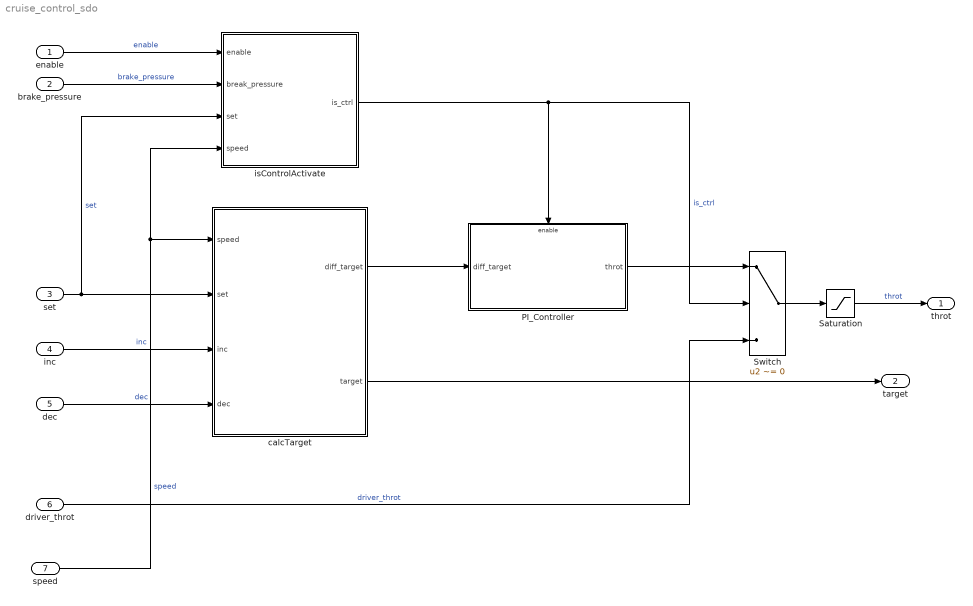
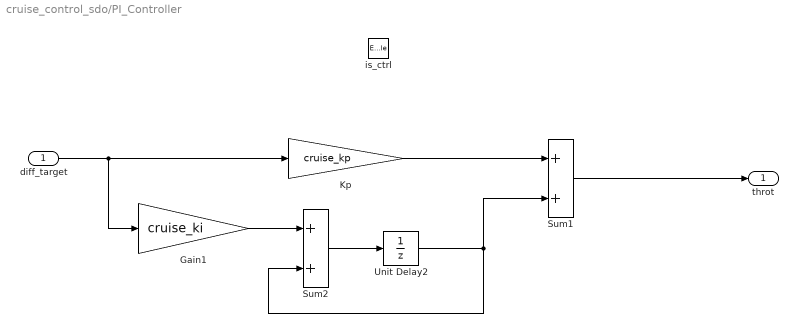
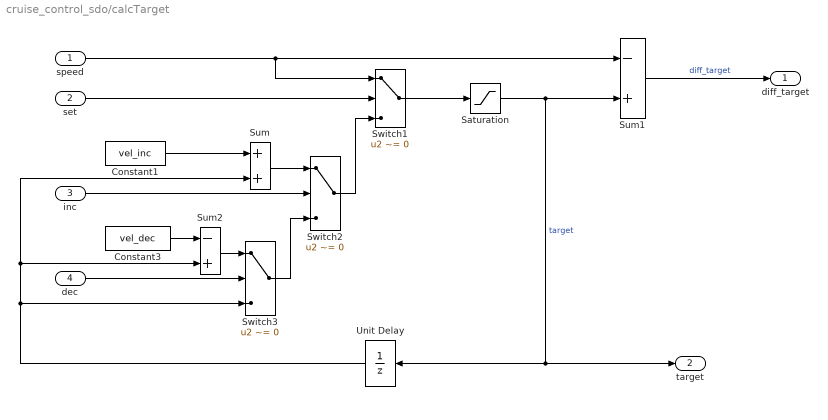
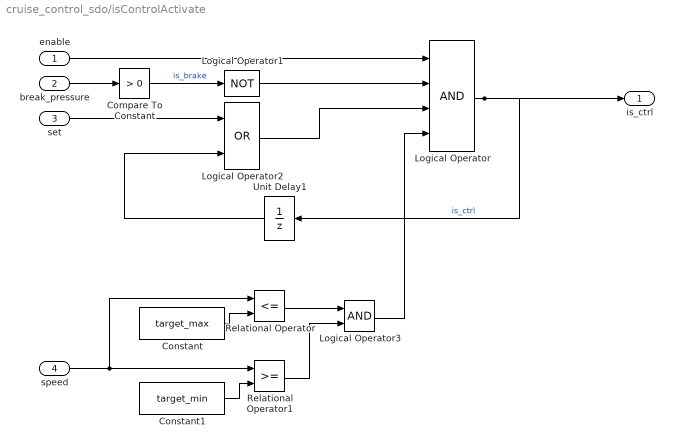
/*
 * File: cruise_control_sdo.c
 *
 * Code generated for Simulink model 'cruise_control_sdo'.
 *
 * Model version                  : 1.304
 * Simulink Coder version         : 8.3 (R2012b) 20-Jul-2012
 * TLC version                    : 8.3 (Jul 21 2012)
 * C/C++ source code generated on : Wed Jan 30 05:09:50 2013
 *
 * Target selection: ert.tlc
 * Embedded hardware selection: NEC->V850
 * Code generation objectives:
 *    1. Execution efficiency
 *    2. ROM efficiency
 *    3. RAM efficiency
 * Validation result: Not run
 */

#include "cruise_control_sdo.h"
#include "cruise_control_sdo_private.h"

/* Exported data definition */

/* Definition for custom storage class: Default */
int16_T brake_pressure;
boolean_T dec;
int16_T diff_target;
int16_T driver_throt;
boolean_T enable;
boolean_T inc;
boolean_T is_ctrl;
boolean_T set;
int16_T speed;
int16_T target;
int16_T throt;
int16_T throt_max = 100;
int16_T throt_min = 0;
int16_T vel_dec = 1;
int16_T vel_inc = 1;

/* Const memory section */
/* Definition for custom storage class: Const */
const int16_T target_max = 100;
const int16_T target_min = 40;

/* Block signals and states (auto storage) */
D_Work_cruise_control_sdo cruise_control_sdo_DWork;

/* Model step function */
void cruise_control_sdo_step(void)
{
  int16_T tmp;

  /* Switch: '<S2>/Switch1' incorporates:
   *  Inport: '<Root>/dec'
   *  Inport: '<Root>/inc'
   *  Inport: '<Root>/set'
   *  Switch: '<S2>/Switch2'
   *  Switch: '<S2>/Switch3'
   */
  if (set) {
    /* Saturate: '<Root>/Saturation' incorporates:
     *  Inport: '<Root>/speed'
     */
    throt = speed;
  } else {
    if (inc) {
      /* Sum: '<S2>/Sum' incorporates:
       *  Constant: '<S2>/Constant1'
       *  Switch: '<S2>/Switch2'
       */
      if (vel_inc > 2047) {
        tmp = MAX_int16_T;
      } else if (vel_inc <= -2048) {
        tmp = MIN_int16_T;
      } else {
        tmp = (int16_T)(vel_inc << 4);
      }

      /* Switch: '<S2>/Switch2' incorporates:
       *  Sum: '<S2>/Sum'
       *  UnitDelay: '<S2>/Unit Delay'
       */
      target = (int16_T)(tmp + target);
    } else {
      if (dec) {
        /* Sum: '<S2>/Sum2' incorporates:
         *  Constant: '<S2>/Constant3'
         *  Switch: '<S2>/Switch2'
         *  Switch: '<S2>/Switch3'
         */
        if (vel_dec > 2047) {
          tmp = MAX_int16_T;
        } else if (vel_dec <= -2048) {
          tmp = MIN_int16_T;
        } else {
          tmp = (int16_T)(vel_dec << 4);
        }

        /* Switch: '<S2>/Switch3' incorporates:
         *  Sum: '<S2>/Sum2'
         *  Switch: '<S2>/Switch2'
         *  UnitDelay: '<S2>/Unit Delay'
         */
        target = (int16_T)(target - tmp);
      }
    }

    /* Saturate: '<Root>/Saturation' incorporates:
     *  Inport: '<Root>/dec'
     *  Switch: '<S2>/Switch2'
     *  Switch: '<S2>/Switch3'
     */
    throt = target;
  }

  /* End of Switch: '<S2>/Switch1' */

  /* Saturate: '<S2>/Saturation' */
  if (target_max > 2047) {
    tmp = MAX_int16_T;
  } else if (target_max <= -2048) {
    tmp = MIN_int16_T;
  } else {
    tmp = (int16_T)(target_max << 4);
  }

  if (throt >= tmp) {
    if (target_max > 2047) {
      target = MAX_int16_T;
    } else if (target_max <= -2048) {
      target = MIN_int16_T;
    } else {
      target = (int16_T)(target_max << 4);
    }
  } else {
    if (target_min > 2047) {
      tmp = MAX_int16_T;
    } else if (target_min <= -2048) {
      tmp = MIN_int16_T;
    } else {
      tmp = (int16_T)(target_min << 4);
    }

    if (throt <= tmp) {
      if (target_min > 2047) {
        target = MAX_int16_T;
      } else if (target_min <= -2048) {
        target = MIN_int16_T;
      } else {
        target = (int16_T)(target_min << 4);
      }
    } else {
      target = throt;
    }
  }

  /* End of Saturate: '<S2>/Saturation' */

  /* Sum: '<S2>/Sum1' incorporates:
   *  Inport: '<Root>/speed'
   */
  diff_target = (int16_T)(target - speed);

  /* Logic: '<S3>/Logical Operator' incorporates:
   *  Constant: '<S3>/Constant'
   *  Constant: '<S3>/Constant1'
   *  Inport: '<Root>/brake_pressure'
   *  Inport: '<Root>/enable'
   *  Inport: '<Root>/set'
   *  Inport: '<Root>/speed'
   *  Logic: '<S3>/Logical Operator1'
   *  Logic: '<S3>/Logical Operator2'
   *  Logic: '<S3>/Logical Operator3'
   *  RelationalOperator: '<S3>/Relational Operator'
   *  RelationalOperator: '<S3>/Relational Operator1'
   *  RelationalOperator: '<S4>/Compare'
   *  UnitDelay: '<S3>/Unit Delay1'
   */
  is_ctrl = ((((enable) && (!(brake_pressure > 0))) && ((set) || (is_ctrl))) &&
             ((speed <= (target_max << 4)) && (speed >= (target_min << 4))));

  /* Outputs for Enabled SubSystem: '<Root>/PI_Controller' incorporates:
   *  EnablePort: '<S1>/is_ctrl'
   */
  if (is_ctrl) {
    if (!cruise_control_sdo_DWork.PI_Controller_MODE) {
      /* InitializeConditions for UnitDelay: '<S1>/Unit Delay2' */
      cruise_control_sdo_DWork.UnitDelay2_DSTATE = 0;
      cruise_control_sdo_DWork.PI_Controller_MODE = TRUE;
    }

    /* Sum: '<S1>/Sum1' incorporates:
     *  Gain: '<S1>/Kp'
     *  UnitDelay: '<S1>/Unit Delay2'
     */
    cruise_control_sdo_DWork.Sum1 = (int16_T)(((int16_T)((cruise_kp *
      diff_target) >> 8)) + cruise_control_sdo_DWork.UnitDelay2_DSTATE);

    /* Gain: '<S1>/Gain1' */
    if (cruise_ki > 1) {
      tmp = MAX_int16_T;
    } else if (cruise_ki <= -2) {
      tmp = MIN_int16_T;
    } else {
      tmp = (int16_T)(cruise_ki << 14);
    }

    /* Update for UnitDelay: '<S1>/Unit Delay2' incorporates:
     *  Gain: '<S1>/Gain1'
     *  Sum: '<S1>/Sum2'
     *  UnitDelay: '<S1>/Unit Delay2'
     */
    cruise_control_sdo_DWork.UnitDelay2_DSTATE += ((tmp * diff_target) >> 22);
  } else {
    if (cruise_control_sdo_DWork.PI_Controller_MODE) {
      cruise_control_sdo_DWork.PI_Controller_MODE = FALSE;
    }
  }

  /* End of Outputs for SubSystem: '<Root>/PI_Controller' */

  /* Switch: '<Root>/Switch' */
  if (is_ctrl) {
    /* Saturate: '<Root>/Saturation' */
    throt = cruise_control_sdo_DWork.Sum1;
  } else {
    /* Saturate: '<Root>/Saturation' incorporates:
     *  Inport: '<Root>/driver_throt'
     */
    throt = driver_throt;
  }

  /* End of Switch: '<Root>/Switch' */

  /* Saturate: '<Root>/Saturation' */
  if (throt_max > 2047) {
    tmp = MAX_int16_T;
  } else if (throt_max <= -2048) {
    tmp = MIN_int16_T;
  } else {
    tmp = (int16_T)(throt_max << 4);
  }

  if (throt >= tmp) {
    if (throt_max > 2047) {
      throt = MAX_int16_T;
    } else if (throt_max <= -2048) {
      throt = MIN_int16_T;
    } else {
      throt = (int16_T)(throt_max << 4);
    }
  } else {
    if (throt_min > 2047) {
      tmp = MAX_int16_T;
    } else if (throt_min <= -2048) {
      tmp = MIN_int16_T;
    } else {
      tmp = (int16_T)(throt_min << 4);
    }

    if (throt <= tmp) {
      if (throt_min > 2047) {
        throt = MAX_int16_T;
      } else if (throt_min <= -2048) {
        throt = MIN_int16_T;
      } else {
        throt = (int16_T)(throt_min << 4);
      }
    }
  }
}
